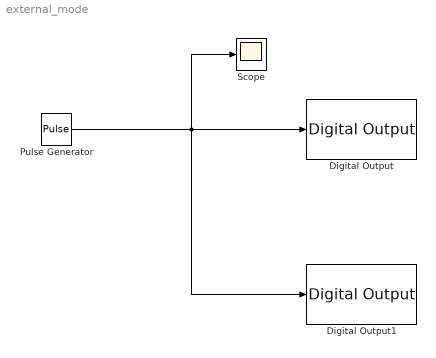
/*
 * File: external_mode.c
 *
 * Code generated for Simulink model 'external_mode'.
 *
 * Model version                  : 1.1
 * Simulink Coder version         : 24.1 (R2024a) 19-Nov-2023
 * C/C++ source code generated on : Fri Feb 28 21:08:34 2025
 *
 * Target selection: ert.tlc
 * Embedded hardware selection: Texas Instruments->C2000
 * Code generation objectives: Unspecified
 * Validation result: Not run
 */

#include "external_mode.h"
#include "rtwtypes.h"
#include "external_mode_private.h"
#include <string.h>

/* Block signals (default storage) */
B_external_mode_T external_mode_B;

/* Block states (default storage) */
DW_external_mode_T external_mode_DW;

/* Real-time model */
static RT_MODEL_external_mode_T external_mode_M_;
RT_MODEL_external_mode_T *const external_mode_M = &external_mode_M_;

/* Model step function */
void external_mode_step(void)
{
  /* DiscretePulseGenerator: '<Root>/Pulse Generator' */
  external_mode_B.PulseGenerator = (external_mode_DW.clockTickCounter <
    external_mode_P.PulseGenerator_Duty) && (external_mode_DW.clockTickCounter >=
    0L) ? external_mode_P.PulseGenerator_Amp : 0.0;

  /* DiscretePulseGenerator: '<Root>/Pulse Generator' */
  if (external_mode_DW.clockTickCounter >= external_mode_P.PulseGenerator_Period
      - 1.0) {
    external_mode_DW.clockTickCounter = 0L;
  } else {
    external_mode_DW.clockTickCounter++;
  }

  /* S-Function (c280xgpio_do): '<Root>/Digital Output' */
  {
    GpioDataRegs.GPATOGGLE.bit.GPIO31 = (uint16_T)
      (external_mode_B.PulseGenerator != 0);
  }

  /* S-Function (c280xgpio_do): '<Root>/Digital Output1' */
  {
    GpioDataRegs.GPBTOGGLE.bit.GPIO34 = (uint16_T)
      (external_mode_B.PulseGenerator != 0);
  }

  /* Update absolute time for base rate */
  /* The "clockTick0" counts the number of times the code of this task has
   * been executed. The absolute time is the multiplication of "clockTick0"
   * and "Timing.stepSize0". Size of "clockTick0" ensures timer will not
   * overflow during the application lifespan selected.
   */
  external_mode_M->Timing.taskTime0 =
    ((time_T)(++external_mode_M->Timing.clockTick0)) *
    external_mode_M->Timing.stepSize0;
}
